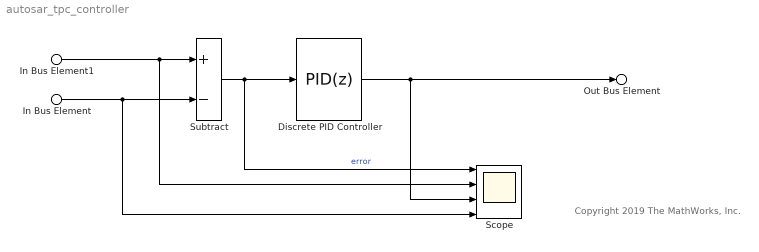
/*
 * Academic License - for use in teaching, academic research, and meeting
 * course requirements at degree granting institutions only.  Not for
 * government, commercial, or other organizational use.
 *
 * File: autosar_tpc_controller.c
 *
 * Code generated for Simulink model 'autosar_tpc_controller'.
 *
 * Model version                  : 5.0
 * Simulink Coder version         : 9.7 (R2022a) 13-Nov-2021
 * C/C++ source code generated on : Mon Apr 25 13:25:18 2022
 *
 * Target selection: autosar.tlc
 * Embedded hardware selection: Intel->x86-64 (Windows64)
 * Code generation objectives: Unspecified
 * Validation result: Not run
 */

#include "autosar_tpc_controller.h"
#include "rtwtypes.h"

/* Block states (default storage) */
DW_autosar_tpc_controller_T autosar_tpc_controller_DW;

/* Model step function */
void Controller_Step(void)
{
  float32 rtb_DeadZone;
  float32 rtb_IntegralGain;
  float32 rtb_Sum;
  sint8 rtb_DeadZone_0;
  sint8 rtb_IntegralGain_0;

  /* Gain: '<S34>/Integral Gain' incorporates:
   *  Inport generated from: '<Root>/In Bus Element1'
   *  Inport generated from: '<Root>/In Bus Element'
   *  Sum: '<Root>/Subtract'
   */
  rtb_IntegralGain = Rte_IRead_Controller_Step_APP_Percent_Value() -
    Rte_IRead_Controller_Step_TPS_Percent_Value();

  /* Sum: '<S46>/Sum' incorporates:
   *  Delay: '<S30>/UD'
   *  DiscreteIntegrator: '<S37>/Integrator'
   *  Sum: '<S30>/Diff'
   */
  rtb_Sum = (rtb_IntegralGain + autosar_tpc_controller_DW.Integrator_DSTATE) +
    (0.0F - autosar_tpc_controller_DW.UD_DSTATE);

  /* DeadZone: '<S28>/DeadZone' */
  if (rtb_Sum > 100.0F) {
    /* DeadZone: '<S28>/DeadZone' */
    rtb_DeadZone = rtb_Sum - 100.0F;
  } else if (rtb_Sum >= -100.0F) {
    /* DeadZone: '<S28>/DeadZone' */
    rtb_DeadZone = 0.0F;
  } else {
    /* DeadZone: '<S28>/DeadZone' */
    rtb_DeadZone = rtb_Sum - -100.0F;
  }

  /* End of DeadZone: '<S28>/DeadZone' */

  /* Gain: '<S34>/Integral Gain' */
  rtb_IntegralGain *= 2.0F;

  /* Switch: '<S26>/Switch1' incorporates:
   *  Constant: '<S26>/Constant'
   *  Constant: '<S26>/Constant2'
   *  Constant: '<S26>/Constant5'
   *  RelationalOperator: '<S26>/fix for DT propagation issue'
   */
  if (rtb_DeadZone > 0.0F) {
    rtb_DeadZone_0 = 1;
  } else {
    rtb_DeadZone_0 = -1;
  }

  /* End of Switch: '<S26>/Switch1' */

  /* Switch: '<S26>/Switch2' incorporates:
   *  Constant: '<S26>/Constant3'
   *  Constant: '<S26>/Constant4'
   *  Constant: '<S26>/Constant5'
   *  RelationalOperator: '<S26>/fix for DT propagation issue1'
   */
  if (rtb_IntegralGain > 0.0F) {
    rtb_IntegralGain_0 = 1;
  } else {
    rtb_IntegralGain_0 = -1;
  }

  /* End of Switch: '<S26>/Switch2' */

  /* Switch: '<S26>/Switch' incorporates:
   *  Constant: '<S26>/Constant1'
   *  Constant: '<S26>/Constant5'
   *  Logic: '<S26>/AND3'
   *  RelationalOperator: '<S26>/Equal1'
   *  RelationalOperator: '<S26>/Relational Operator'
   */
  if ((rtb_DeadZone != 0.0F) && (rtb_DeadZone_0 == rtb_IntegralGain_0)) {
    rtb_IntegralGain = 0.0F;
  }

  /* End of Switch: '<S26>/Switch' */

  /* Update for DiscreteIntegrator: '<S37>/Integrator' */
  autosar_tpc_controller_DW.Integrator_DSTATE += 0.005F * rtb_IntegralGain;

  /* Update for Delay: '<S30>/UD' */
  autosar_tpc_controller_DW.UD_DSTATE = 0.0F;

  /* Saturate: '<S44>/Saturation' */
  if (rtb_Sum > 100.0F) {
    rtb_Sum = 100.0F;
  } else if (rtb_Sum < -100.0F) {
    rtb_Sum = -100.0F;
  }

  /* End of Saturate: '<S44>/Saturation' */

  /* Outport generated from: '<Root>/Out Bus Element' */
  Rte_IWrite_Controller_Step_ThrCmd_Percent_Value(rtb_Sum);
}
